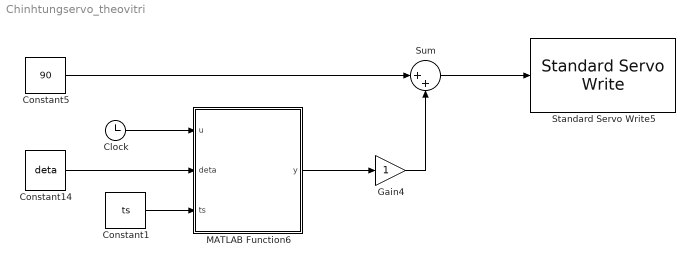
== matlab function Chinhtungservo_theovitri/MATLAB Function6 ==
function y = fcn(u,deta,ts)
%#codegen

deta2=deta(: , 1);
Deta2=deta2*180/pi;
k = mod(round(u/ts), 101)+1;

y=Deta2(k);

/*
 * File: Chinhtungservo_theovitri.c
 *
 * Code generated for Simulink model 'Chinhtungservo_theovitri'.
 *
 * Model version                  : 1.11
 * Simulink Coder version         : 8.10 (R2016a) 10-Feb-2016
 * C/C++ source code generated on : Fri Dec 22 20:24:54 2017
 *
 * Target selection: ert.tlc
 * Embedded hardware selection: ARM Compatible->ARM Cortex
 * Code generation objectives: Unspecified
 * Validation result: Not run
 */

#include "Chinhtungservo_theovitri.h"
#include "Chinhtungservo_theovitri_private.h"

/* Real-time model */
RT_MODEL_Chinhtungservo_theov_T Chinhtungservo_theovitri_M_;
RT_MODEL_Chinhtungservo_theov_T *const Chinhtungservo_theovitri_M =
  &Chinhtungservo_theovitri_M_;
real_T rt_roundd_snf(real_T u)
{
  real_T y;
  if (fabs(u) < 4.503599627370496E+15) {
    if (u >= 0.5) {
      y = floor(u + 0.5);
    } else if (u > -0.5) {
      y = u * 0.0;
    } else {
      y = ceil(u - 0.5);
    }
  } else {
    y = u;
  }

  return y;
}

/* Model step function */
void Chinhtungservo_theovitri_step(void)
{
  /* local block i/o variables */
  real_T rtb_Clock;
  real_T x;
  uint8_T tmp;

  /* Clock: '<Root>/Clock' */
  rtb_Clock = Chinhtungservo_theovitri_M->Timing.t[0];

  /* MATLAB Function: '<Root>/MATLAB Function6' incorporates:
   *  Constant: '<Root>/Constant1'
   */
  /* MATLAB Function 'MATLAB Function6': '<S1>:1' */
  /* '<S1>:1:4' deta2=deta(: , 1); */
  /* '<S1>:1:5' Deta2=deta2*180/pi; */
  /* '<S1>:1:6' k = mod(round(u/ts), 101)+1; */
  x = rt_roundd_snf(rtb_Clock / Chinhtungservo_theovitri_P.ts);

  /* DataTypeConversion: '<S2>/Data Type Conversion' incorporates:
   *  Constant: '<Root>/Constant14'
   *  Constant: '<Root>/Constant5'
   *  Gain: '<Root>/Gain4'
   *  MATLAB Function: '<Root>/MATLAB Function6'
   *  Sum: '<Root>/Sum'
   */
  /* '<S1>:1:8' y=Deta2(k); */
  x = Chinhtungservo_theovitri_P.deta[(int32_T)((x - floor(x / 101.0) * 101.0) +
    1.0) - 1] * 180.0 / 3.1415926535897931 *
    Chinhtungservo_theovitri_P.Gain4_Gain +
    Chinhtungservo_theovitri_P.Constant5_Value;
  if (x < 256.0) {
    if (x >= 0.0) {
      tmp = (uint8_T)x;
    } else {
      tmp = 0U;
    }
  } else {
    tmp = MAX_uint8_T;
  }

  /* End of DataTypeConversion: '<S2>/Data Type Conversion' */

  /* S-Function (arduinoservowrite_sfcn): '<S2>/Servo Write' */
  MW_servoWrite(Chinhtungservo_theovitri_P.ServoWrite_p1, tmp);

  /* Update absolute time for base rate */
  /* The "clockTick0" counts the number of times the code of this task has
   * been executed. The absolute time is the multiplication of "clockTick0"
   * and "Timing.stepSize0". Size of "clockTick0" ensures timer will not
   * overflow during the application lifespan selected.
   * Timer of this task consists of two 32 bit unsigned integers.
   * The two integers represent the low bits Timing.clockTick0 and the high bits
   * Timing.clockTickH0. When the low bit overflows to 0, the high bits increment.
   */
  if (!(++Chinhtungservo_theovitri_M->Timing.clockTick0)) {
    ++Chinhtungservo_theovitri_M->Timing.clockTickH0;
  }

  Chinhtungservo_theovitri_M->Timing.t[0] =
    Chinhtungservo_theovitri_M->Timing.clockTick0 *
    Chinhtungservo_theovitri_M->Timing.stepSize0 +
    Chinhtungservo_theovitri_M->Timing.clockTickH0 *
    Chinhtungservo_theovitri_M->Timing.stepSize0 * 4294967296.0;

  {
    /* Update absolute timer for sample time: [0.02s, 0.0s] */
    /* The "clockTick1" counts the number of times the code of this task has
     * been executed. The resolution of this integer timer is 0.02, which is the step size
     * of the task. Size of "clockTick1" ensures timer will not overflow during the
     * application lifespan selected.
     * Timer of this task consists of two 32 bit unsigned integers.
     * The two integers represent the low bits Timing.clockTick1 and the high bits
     * Timing.clockTickH1. When the low bit overflows to 0, the high bits increment.
     */
    Chinhtungservo_theovitri_M->Timing.clockTick1++;
    if (!Chinhtungservo_theovitri_M->Timing.clockTick1) {
      Chinhtungservo_theovitri_M->Timing.clockTickH1++;
    }
  }
}
